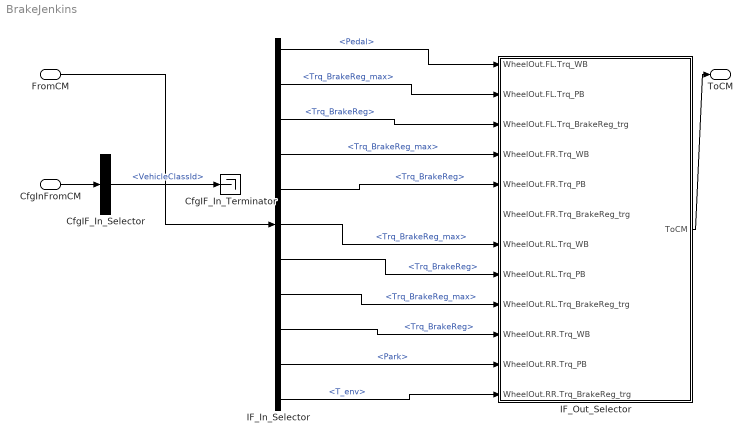
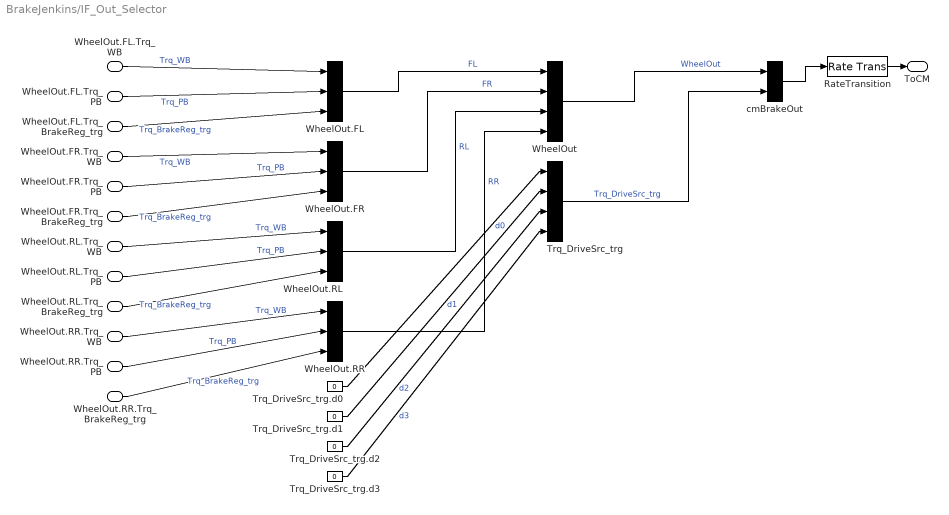
/*
 * BrakeJenkins.c
 *
 * Sponsored Third Party Support License -- for use only to support
 * products interfaced to MathWorks software under terms specified in your
 * company's restricted use license agreement.
 *
 * Code generation for model "BrakeJenkins".
 *
 * Model version              : 1.2
 * Simulink Coder version : 9.4 (R2020b) 29-Jul-2020
 * C source code generated on : Tue Feb  7 16:04:06 2023
 *
 * Target selection: CarMaker.tlc
 * Note: GRT includes extra infrastructure and instrumentation for prototyping
 * Embedded hardware selection: Intel->x86-64 (Windows64)
 * Code generation objectives: Unspecified
 * Validation result: Not run
 */

#include <infoc.h>
#include <Log.h>
#include <InfoParam.h>
#include <DataDict.h>
#include <MatSupp.h>
#include "BrakeJenkins.h"
#include "BrakeJenkins_private.h"
#include "BrakeJenkins_wrap.h"

/* CarMaker: Compile- and link-time checks for the right Matlab version. */
#if MATSUPP_NUMVER == 90900

/* The following statement will cause an "unresolved symbol" error when
   linking with a MatSupp library built for the wrong Matlab version. */
extern int MATSUPP_VARNAME(MatSupp, MATSUPP_NUMVER);
void *MATSUPP_VARNAME(MODEL, MATSUPP_NUMVER) = &MATSUPP_VARNAME(MatSupp,
  MATSUPP_NUMVER);

#else
# error Compiler options unsuitable for C code created with Matlab 9.9
#endif

const cmBrakeOut BrakeJenkins_rtZcmBrakeOut = {
  {
    {
      0.0,                             /* Trq_WB */
      0.0,                             /* Trq_PB */
      0.0                              /* Trq_BrakeReg_trg */
    },                                 /* FL */

    {
      0.0,                             /* Trq_WB */
      0.0,                             /* Trq_PB */
      0.0                              /* Trq_BrakeReg_trg */
    },                                 /* FR */

    {
      0.0,                             /* Trq_WB */
      0.0,                             /* Trq_PB */
      0.0                              /* Trq_BrakeReg_trg */
    },                                 /* RL */

    {
      0.0,                             /* Trq_WB */
      0.0,                             /* Trq_PB */
      0.0                              /* Trq_BrakeReg_trg */
    }                                  /* RR */
  },                                   /* WheelOut */

  {
    0.0,                               /* d0 */
    0.0,                               /* d1 */
    0.0,                               /* d2 */
    0.0                                /* d3 */
  }                                    /* Trq_DriveSrc_trg */
} ;                                    /* cmBrakeOut ground */

/* Block parameters (default storage) */
P_BrakeJenkins_T BrakeJenkins_P = {
  /* Expression: 0
   * Referenced by: '<S1>/Trq_DriveSrc_trg.d0'
   */
  0.0,

  /* Expression: 0
   * Referenced by: '<S1>/Trq_DriveSrc_trg.d1'
   */
  0.0,

  /* Expression: 0
   * Referenced by: '<S1>/Trq_DriveSrc_trg.d2'
   */
  0.0,

  /* Expression: 0
   * Referenced by: '<S1>/Trq_DriveSrc_trg.d3'
   */
  0.0
};

/* Model step function */
void BrakeJenkins_step(RT_MODEL_BrakeJenkins_T *const BrakeJenkins_M)
{
  ExtU_BrakeJenkins_T *BrakeJenkins_U = (ExtU_BrakeJenkins_T *)
    BrakeJenkins_M->inputs;
  ExtY_BrakeJenkins_T *BrakeJenkins_Y = (ExtY_BrakeJenkins_T *)
    BrakeJenkins_M->outputs;

  /* BusCreator generated from: '<Root>/ToCM' incorporates:
   *  Inport: '<Root>/FromCM'
   */
  BrakeJenkins_Y->ToCM.WheelOut.FL.Trq_WB = BrakeJenkins_U->FromCM.Pedal;
  BrakeJenkins_Y->ToCM.WheelOut.FL.Trq_PB =
    BrakeJenkins_U->FromCM.WheelIn.FL.Trq_BrakeReg_max;
  BrakeJenkins_Y->ToCM.WheelOut.FL.Trq_BrakeReg_trg =
    BrakeJenkins_U->FromCM.WheelIn.FL.Trq_BrakeReg;

  /* BusCreator generated from: '<Root>/ToCM' incorporates:
   *  Inport: '<Root>/FromCM'
   */
  BrakeJenkins_Y->ToCM.WheelOut.FR.Trq_WB =
    BrakeJenkins_U->FromCM.WheelIn.FR.Trq_BrakeReg_max;
  BrakeJenkins_Y->ToCM.WheelOut.FR.Trq_PB =
    BrakeJenkins_U->FromCM.WheelIn.FR.Trq_BrakeReg;
  BrakeJenkins_Y->ToCM.WheelOut.FR.Trq_BrakeReg_trg = 0.0;

  /* BusCreator generated from: '<Root>/ToCM' incorporates:
   *  Inport: '<Root>/FromCM'
   */
  BrakeJenkins_Y->ToCM.WheelOut.RL.Trq_WB =
    BrakeJenkins_U->FromCM.WheelIn.RL.Trq_BrakeReg_max;
  BrakeJenkins_Y->ToCM.WheelOut.RL.Trq_PB =
    BrakeJenkins_U->FromCM.WheelIn.RL.Trq_BrakeReg;
  BrakeJenkins_Y->ToCM.WheelOut.RL.Trq_BrakeReg_trg =
    BrakeJenkins_U->FromCM.WheelIn.RR.Trq_BrakeReg_max;

  /* BusCreator generated from: '<Root>/ToCM' incorporates:
   *  Inport: '<Root>/FromCM'
   */
  BrakeJenkins_Y->ToCM.WheelOut.RR.Trq_WB =
    BrakeJenkins_U->FromCM.WheelIn.RR.Trq_BrakeReg;
  BrakeJenkins_Y->ToCM.WheelOut.RR.Trq_PB = BrakeJenkins_U->FromCM.Park;
  BrakeJenkins_Y->ToCM.WheelOut.RR.Trq_BrakeReg_trg =
    BrakeJenkins_U->FromCM.T_env;

  /* BusCreator generated from: '<Root>/ToCM' incorporates:
   *  Constant: '<S1>/Trq_DriveSrc_trg.d0'
   *  Constant: '<S1>/Trq_DriveSrc_trg.d1'
   *  Constant: '<S1>/Trq_DriveSrc_trg.d2'
   *  Constant: '<S1>/Trq_DriveSrc_trg.d3'
   */
  BrakeJenkins_Y->ToCM.Trq_DriveSrc_trg.d0 =
    BrakeJenkins_P.Trq_DriveSrc_trgd0_Value;
  BrakeJenkins_Y->ToCM.Trq_DriveSrc_trg.d1 =
    BrakeJenkins_P.Trq_DriveSrc_trgd1_Value;
  BrakeJenkins_Y->ToCM.Trq_DriveSrc_trg.d2 =
    BrakeJenkins_P.Trq_DriveSrc_trgd2_Value;
  BrakeJenkins_Y->ToCM.Trq_DriveSrc_trg.d3 =
    BrakeJenkins_P.Trq_DriveSrc_trgd3_Value;
}
